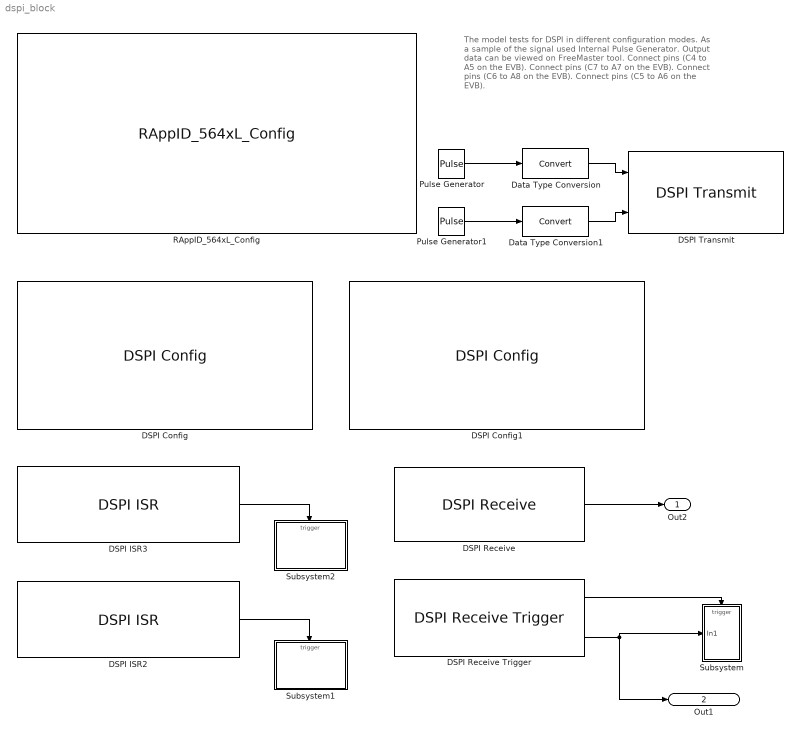
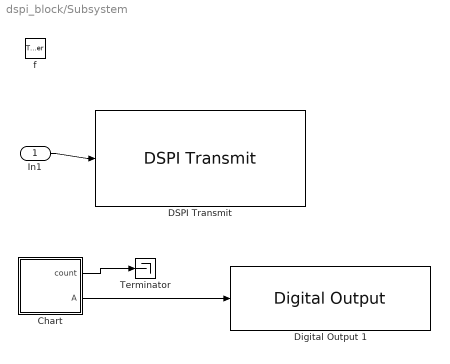
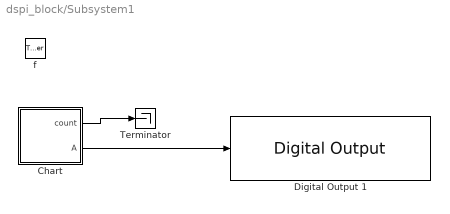
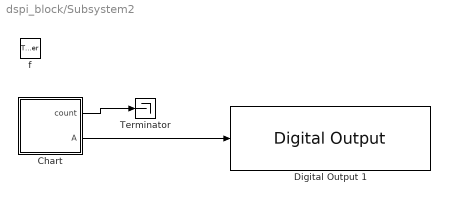
== stateflow chart Subsystem2/Chart ==
  state A
  state A1
  (default) -> A : {count =0;}
  A -> A1
  A1 -> A : { count = count + 1;}
  data: count output double; A output boolean

== stateflow chart Subsystem/Chart ==
  state A
  state A1
  (default) -> A : {count =0;}
  A -> A1
  A1 -> A : { count = count + 1;}
  data: count output double; A output boolean

== stateflow chart Subsystem1/Chart ==
  state A
  state A1
  (default) -> A : {count =0;}
  A -> A1
  A1 -> A : { count = count + 1;}
  data: count output double; A output boolean

/*
 * Sponsored License - for use in support of a program or activity
 * sponsored by MathWorks.  Not for government, commercial or other
 * non-sponsored organizational use.
 *
 * File: dspi_block.c
 *
 * Code generated for Simulink model 'dspi_block'.
 *
 * Model version                  : 1.103
 * Simulink Coder version         : 8.11 (R2016b) 25-Aug-2016
 * C/C++ source code generated on : Thu Dec 21 14:43:43 2017
 *
 * Target selection: rappid564xl.tlc
 * Embedded hardware selection: Freescale->32-bit PowerPC
 * Code generation objectives: Unspecified
 * Validation result: Not run
 */

#include "dspi_block.h"
#include "dspi_block_private.h"

/* Named constants for Chart: '<S2>/Chart' */
#define dspi_block_IN_A                ((uint8_T)1U)
#define dspi_block_IN_A1               ((uint8_T)2U)
#define dspi_block_IN_NO_ACTIVE_CHILD  ((uint8_T)0U)

/* Block signals (auto storage) */
BlockIO_dspi_block dspi_block_B;

/* Block states (auto storage) */
D_Work_dspi_block dspi_block_DWork;

/* External outputs (root outports fed by signals with auto storage) */
ExternalOutputs_dspi_block dspi_block_Y;

/*
 * System initialize for atomic system:
 *    '<S2>/Chart'
 *    '<S3>/Chart'
 *    '<S1>/Chart'
 */
void dspi_block_Chart_Init(rtB_Chart_dspi_block *localB, rtDW_Chart_dspi_block
  *localDW)
{
  localDW->is_active_c5_dspi_block = 0U;
  localDW->is_c5_dspi_block = dspi_block_IN_NO_ACTIVE_CHILD;
  localB->count = 0.0;
  localB->A = false;
}

/*
 * System reset for atomic system:
 *    '<S2>/Chart'
 *    '<S3>/Chart'
 *    '<S1>/Chart'
 */
void dspi_block_Chart_Reset(rtB_Chart_dspi_block *localB, rtDW_Chart_dspi_block *
  localDW)
{
  localDW->is_active_c5_dspi_block = 0U;
  localDW->is_c5_dspi_block = dspi_block_IN_NO_ACTIVE_CHILD;
  localB->count = 0.0;
  localB->A = false;
}

/*
 * Output and update for atomic system:
 *    '<S2>/Chart'
 *    '<S3>/Chart'
 *    '<S1>/Chart'
 */
void dspi_block_Chart(rtB_Chart_dspi_block *localB, rtDW_Chart_dspi_block
                      *localDW)
{
  /* Gateway: Subsystem1/Chart */
  /* During: Subsystem1/Chart */
  if (localDW->is_active_c5_dspi_block == 0U) {
    /* Entry: Subsystem1/Chart */
    localDW->is_active_c5_dspi_block = 1U;

    /* Entry Internal: Subsystem1/Chart */
    /* Transition: '<S5>:1' */
    localB->count = 0.0;
    localDW->is_c5_dspi_block = dspi_block_IN_A;
    localB->A = true;
  } else if (localDW->is_c5_dspi_block == dspi_block_IN_A) {
    /* During 'A': '<S5>:3' */
    /* Transition: '<S5>:7' */
    localB->A = false;
    localDW->is_c5_dspi_block = dspi_block_IN_A1;
  } else {
    /* During 'A1': '<S5>:6' */
    /* Transition: '<S5>:8' */
    localB->count++;
    localDW->is_c5_dspi_block = dspi_block_IN_A;
    localB->A = true;
  }
}

/* System initialize for function-call system: '<Root>/Subsystem1' */
void dspi_block_Subsystem1_Init(void)
{
  /* SystemInitialize for Chart: '<S2>/Chart' */
  dspi_block_Chart_Init(&dspi_block_B.sf_Chart, &dspi_block_DWork.sf_Chart);
}

/* System reset for function-call system: '<Root>/Subsystem1' */
void dspi_block_Subsystem1_Reset(void)
{
  /* SystemReset for Chart: '<S2>/Chart' */
  dspi_block_Chart_Reset(&dspi_block_B.sf_Chart, &dspi_block_DWork.sf_Chart);
}

/* Start for function-call system: '<Root>/Subsystem1' */
void dspi_block_Subsystem1_Start(void)
{
  /* Start for S-Function (gpio_564xl_output): '<S2>/Digital Output 1' */

  /* Initialize Pad Configuration Register 12 as Output */
  gpo_init_pcr_out_564xl_fnc( 12 );
}

/* Output and update for function-call system: '<Root>/Subsystem1' */
void dspi_block_Subsystem1(void)
{
  /* Chart: '<S2>/Chart' */
  dspi_block_Chart(&dspi_block_B.sf_Chart, &dspi_block_DWork.sf_Chart);

  /* S-Function (gpio_564xl_output): '<S2>/Digital Output 1' */

  /* Pin Data Output Signal Update PCR[12]. */
  gpo_pin_update_564xl_fnc(12, dspi_block_B.sf_Chart.A);/* GPO Pin Data Output Register Update */
}

/* System initialize for function-call system: '<Root>/Subsystem2' */
void dspi_block_Subsystem2_Init(void)
{
  /* SystemInitialize for Chart: '<S3>/Chart' */
  dspi_block_Chart_Init(&dspi_block_B.sf_Chart_c, &dspi_block_DWork.sf_Chart_c);
}

/* System reset for function-call system: '<Root>/Subsystem2' */
void dspi_block_Subsystem2_Reset(void)
{
  /* SystemReset for Chart: '<S3>/Chart' */
  dspi_block_Chart_Reset(&dspi_block_B.sf_Chart_c, &dspi_block_DWork.sf_Chart_c);
}

/* Start for function-call system: '<Root>/Subsystem2' */
void dspi_block_Subsystem2_Start(void)
{
  /* Start for S-Function (gpio_564xl_output): '<S3>/Digital Output 1' */

  /* Initialize Pad Configuration Register 48 as Output */
  gpo_init_pcr_out_564xl_fnc( 48 );
}

/* Output and update for function-call system: '<Root>/Subsystem2' */
void dspi_block_Subsystem2(void)
{
  /* Chart: '<S3>/Chart' */
  dspi_block_Chart(&dspi_block_B.sf_Chart_c, &dspi_block_DWork.sf_Chart_c);

  /* S-Function (gpio_564xl_output): '<S3>/Digital Output 1' */

  /* Pin Data Output Signal Update PCR[48]. */
  gpo_pin_update_564xl_fnc(48, dspi_block_B.sf_Chart_c.A);/* GPO Pin Data Output Register Update */
}

/* System initialize for function-call system: '<Root>/Subsystem' */
void dspi_block_Subsystem_Init(void)
{
  /* SystemInitialize for Chart: '<S1>/Chart' */
  dspi_block_Chart_Init(&dspi_block_B.sf_Chart_h, &dspi_block_DWork.sf_Chart_h);
}

/* System reset for function-call system: '<Root>/Subsystem' */
void dspi_block_Subsystem_Reset(void)
{
  /* SystemReset for Chart: '<S1>/Chart' */
  dspi_block_Chart_Reset(&dspi_block_B.sf_Chart_h, &dspi_block_DWork.sf_Chart_h);
}

/* Start for function-call system: '<Root>/Subsystem' */
void dspi_block_Subsystem_Start(void)
{
  /* Start for S-Function (dspi_564xl_transmit): '<S1>/DSPI Transmit' */
  dspi_564xl_pin_init(36, 0, 0);
  dspi_564xl_pin_init(39, 0, 0);
  dspi_564xl_pin_init(38, 1, 0);
  dspi_564xl_pin_init(37, 0, 0);

  /* Start for S-Function (gpio_564xl_output): '<S1>/Digital Output 1' */

  /* Initialize Pad Configuration Register 79 as Output */
  gpo_init_pcr_out_564xl_fnc( 79 );
}

/* Output and update for function-call system: '<Root>/Subsystem' */
void dspi_block_Subsystem(void)
{
  /* S-Function (dspi_564xl_transmit): '<S1>/DSPI Transmit' */
  {
    DSPI_PUSHR_32B_tag pushr;
    pushr.R = 0U;
    pushr.B.TXDATA = dspi_block_Y.Out1;
    pushr.R |= (uint32_t)1<<16;
    dspi_564xl_send(0,pushr);
  }

  /* Chart: '<S1>/Chart' */
  dspi_block_Chart(&dspi_block_B.sf_Chart_h, &dspi_block_DWork.sf_Chart_h);

  /* S-Function (gpio_564xl_output): '<S1>/Digital Output 1' */

  /* Pin Data Output Signal Update PCR[79]. */
  gpo_pin_update_564xl_fnc(79, dspi_block_B.sf_Chart_h.A);/* GPO Pin Data Output Register Update */
}

/* Model step function */
void dspi_block_step(void)
{
  int32_T rtb_PulseGenerator1;

  /* DiscretePulseGenerator: '<Root>/Pulse Generator' */
  rtb_PulseGenerator1 = (dspi_block_DWork.clockTickCounter < 1) &&
    (dspi_block_DWork.clockTickCounter >= 0) ? 169 : 0;
  if (dspi_block_DWork.clockTickCounter >= 1) {
    dspi_block_DWork.clockTickCounter = 0;
  } else {
    dspi_block_DWork.clockTickCounter++;
  }

  /* End of DiscretePulseGenerator: '<Root>/Pulse Generator' */

  /* DataTypeConversion: '<Root>/Data Type Conversion' */
  dspi_block_B.DataTypeConversion = (uint16_T)(int32_T)fmod(rtb_PulseGenerator1,
    65536.0);

  /* DiscretePulseGenerator: '<Root>/Pulse Generator1' */
  rtb_PulseGenerator1 = ((dspi_block_DWork.clockTickCounter_l < 3) &&
    (dspi_block_DWork.clockTickCounter_l >= 0));
  if (dspi_block_DWork.clockTickCounter_l >= 4) {
    dspi_block_DWork.clockTickCounter_l = 0;
  } else {
    dspi_block_DWork.clockTickCounter_l++;
  }

  /* End of DiscretePulseGenerator: '<Root>/Pulse Generator1' */

  /* DataTypeConversion: '<Root>/Data Type Conversion1' */
  dspi_block_B.DataTypeConversion1 = (rtb_PulseGenerator1 != 0);

  /* S-Function (dspi_564xl_transmit): '<Root>/DSPI Transmit' */
  {
    DSPI_PUSHR_32B_tag pushr;
    pushr.R = 0U;
    pushr.B.EOQ = (uint32_t)dspi_block_B.DataTypeConversion1;
    pushr.B.TXDATA = dspi_block_B.DataTypeConversion;
    pushr.R |= (uint32_t)1<<16;
    dspi_564xl_send(1,pushr);
  }

  /* S-Function (dspi_564xl_receive): '<Root>/DSPI Receive' */

  /* DSPI Data read DSPI: 2 Mode: slave  */
  dspi_block_Y.Out2 = dspi_564xl_read_slave( 1);
}
